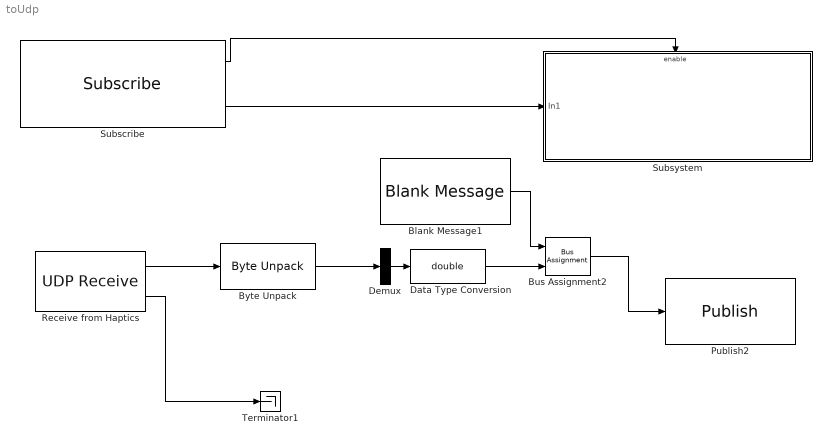
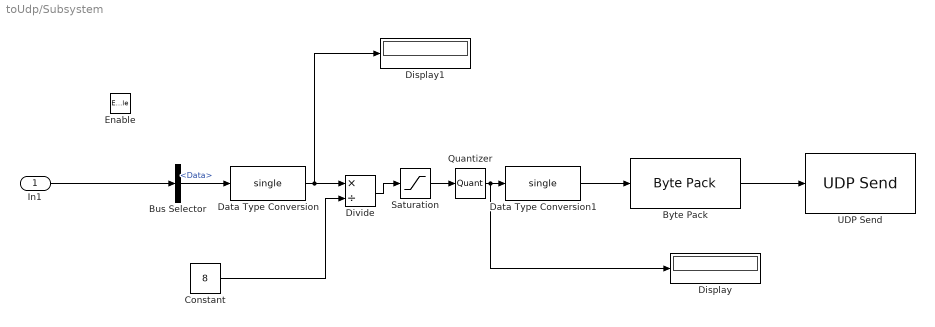
/*
 * toUdp.cpp
 *
 * Academic License - for use in teaching, academic research, and meeting
 * course requirements at degree granting institutions only.  Not for
 * government, commercial, or other organizational use.
 *
 * Code generation for model "toUdp".
 *
 * Model version              : 1.690
 * Simulink Coder version : 8.13 (R2017b) 24-Jul-2017
 * C++ source code generated on : Wed Nov 22 13:22:47 2017
 *
 * Target selection: ert.tlc
 * Note: GRT includes extra infrastructure and instrumentation for prototyping
 * Embedded hardware selection: Generic->Unspecified (assume 32-bit Generic)
 * Code generation objectives: Unspecified
 * Validation result: Not run
 */

#include "toUdp.h"
#include "toUdp_private.h"
#define toUdp_MessageQueueLen          (1)

/* Block signals (auto storage) */
B_toUdp_T toUdp_B;

/* Block states (auto storage) */
DW_toUdp_T toUdp_DW;

/* Real-time model */
RT_MODEL_toUdp_T toUdp_M_;
RT_MODEL_toUdp_T *const toUdp_M = &toUdp_M_;
real32_T rt_roundf_snf(real32_T u)
{
  real32_T y;
  if ((real32_T)fabs((real_T)u) < 8.388608E+6F) {
    if (u >= 0.5F) {
      y = (real32_T)floor((real_T)(u + 0.5F));
    } else if (u > -0.5F) {
      y = u * 0.0F;
    } else {
      y = (real32_T)ceil((real_T)(u - 0.5F));
    }
  } else {
    y = u;
  }

  return y;
}

/* Model step function */
void toUdp_step(void)
{
  char_T *sErr;
  int32_T samplesRead;
  boolean_T b_varargout_1;
  SL_Bus_toUdp_std_msgs_Float64 rtb_BusAssignment2;
  real32_T u0;

  /* S-Function (sdspFromNetwork): '<Root>/Receive from Haptics' */
  sErr = GetErrorBuffer(&toUdp_DW.ReceivefromHaptics_NetworkLib[0U]);
  samplesRead = 4;
  LibOutputs_Network(&toUdp_DW.ReceivefromHaptics_NetworkLib[0U],
                     &toUdp_B.ReceivefromHaptics_o1[0U], &samplesRead);
  if (*sErr != 0) {
    rtmSetErrorStatus(toUdp_M, sErr);
    rtmSetStopRequested(toUdp_M, 1);
  }

  toUdp_B.ReceivefromHaptics_o2 = (uint16_T)samplesRead;

  /* End of S-Function (sdspFromNetwork): '<Root>/Receive from Haptics' */

  /* S-Function (byte2any): '<Root>/Byte Unpack' */

  /* Unpack: <Root>/Byte Unpack */
  (void) memcpy(&toUdp_B.ByteUnpack, &toUdp_B.ReceivefromHaptics_o1[0],
                4);

  /* BusAssignment: '<Root>/Bus Assignment2' incorporates:
   *  DataTypeConversion: '<Root>/Data Type Conversion'
   */
  rtb_BusAssignment2.Data = toUdp_B.ByteUnpack;

  /* Outputs for Atomic SubSystem: '<Root>/Publish2' */
  /* MATLABSystem: '<S2>/SinkBlock' */
  Pub_toUdp_1220.publish(&rtb_BusAssignment2);

  /* End of Outputs for SubSystem: '<Root>/Publish2' */

  /* Outputs for Atomic SubSystem: '<Root>/Subscribe' */
  /* MATLABSystem: '<S3>/SourceBlock' */
  b_varargout_1 = Sub_toUdp_1201.getLatestMessage(&rtb_BusAssignment2);

  /* Outputs for Enabled SubSystem: '<Root>/Subsystem' incorporates:
   *  EnablePort: '<S4>/Enable'
   */
  /* Outputs for Enabled SubSystem: '<S3>/Enabled Subsystem' incorporates:
   *  EnablePort: '<S5>/Enable'
   */
  if (b_varargout_1) {
    /* Product: '<S4>/Divide' incorporates:
     *  Constant: '<S4>/Constant'
     *  DataTypeConversion: '<S4>/Data Type Conversion'
     */
    u0 = (real32_T)rtb_BusAssignment2.Data / toUdp_P.Constant_Value_l;

    /* Saturate: '<S4>/Saturation' */
    if (u0 > toUdp_P.Saturation_UpperSat) {
      u0 = toUdp_P.Saturation_UpperSat;
    } else {
      if (u0 < toUdp_P.Saturation_LowerSat) {
        u0 = toUdp_P.Saturation_LowerSat;
      }
    }

    /* End of Saturate: '<S4>/Saturation' */

    /* Quantizer: '<S4>/Quantizer' */
    toUdp_B.Quantizer = rt_roundf_snf(u0 / toUdp_P.Quantizer_Interval) *
      toUdp_P.Quantizer_Interval;

    /* S-Function (any2byte): '<S4>/Byte Pack' */

    /* Pack: <S4>/Byte Pack */
    (void) memcpy(&toUdp_B.BytePack[0], &toUdp_B.Quantizer,
                  4);

    /* Update for S-Function (sdspToNetwork): '<S4>/UDP Send' */
    sErr = GetErrorBuffer(&toUdp_DW.UDPSend_NetworkLib[0U]);
    LibUpdate_Network(&toUdp_DW.UDPSend_NetworkLib[0U], &toUdp_B.BytePack[0U], 4);
    if (*sErr != 0) {
      rtmSetErrorStatus(toUdp_M, sErr);
      rtmSetStopRequested(toUdp_M, 1);
    }

    /* End of Update for S-Function (sdspToNetwork): '<S4>/UDP Send' */
  }

  /* End of MATLABSystem: '<S3>/SourceBlock' */
  /* End of Outputs for SubSystem: '<S3>/Enabled Subsystem' */
  /* End of Outputs for SubSystem: '<Root>/Subsystem' */
  /* End of Outputs for SubSystem: '<Root>/Subscribe' */
}
